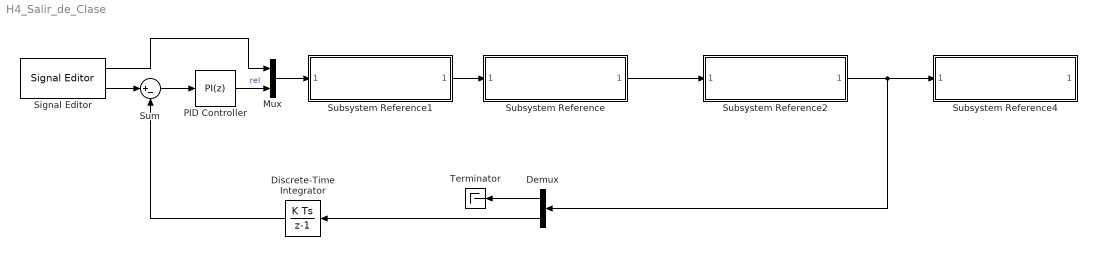
/*
 * Academic License - for use in teaching, academic research, and meeting
 * course requirements at degree granting institutions only.  Not for
 * government, commercial, or other organizational use.
 *
 * File: H4_Salir_de_Clase.c
 *
 * Code generated for Simulink model 'H4_Salir_de_Clase'.
 *
 * Model version                  : 1.26
 * Simulink Coder version         : 23.2 (R2023b) 01-Aug-2023
 * C/C++ source code generated on : Wed Dec 20 12:04:38 2023
 *
 * Target selection: ert.tlc
 * Embedded hardware selection: Atmel->AVR
 * Code generation objectives: Unspecified
 * Validation result: Not run
 */

#include "H4_Salir_de_Clase.h"
#include <math.h>
#include "rt_nonfinite.h"
#include "rtwtypes.h"
#include "H4_Salir_de_Clase_private.h"

/* Block signals (default storage) */
B_H4_Salir_de_Clase_T H4_Salir_de_Clase_B;

/* Block states (default storage) */
DW_H4_Salir_de_Clase_T H4_Salir_de_Clase_DW;

/* Real-time model */
static RT_MODEL_H4_Salir_de_Clase_T H4_Salir_de_Clase_M_;
RT_MODEL_H4_Salir_de_Clase_T *const H4_Salir_de_Clase_M = &H4_Salir_de_Clase_M_;

/* Model step function */
void H4_Salir_de_Clase_step(void)
{
  /* local block i/o variables */
  real_T rtb_V;
  real_T rtb_IntegralGain;
  real_T rtb_IntegralGain_a;
  real_T rtb_IntegralGain_j;
  real_T error_idx_1;
  real_T u0;
  int32_T rtb_Encoder1_0;
  int32_T rtb_Encoder_0;
  int16_T rtb_DataTypeConversion_idx_0;
  int16_T rtb_DataTypeConversion_idx_1;
  int16_T y;

  /* FromWorkspace: '<S2>/From Workspace' */
  {
    real_T t = H4_Salir_de_Clase_M->Timing.t[0];
    real_T *pTimeValues = (real_T *)
      H4_Salir_de_Clase_DW.FromWorkspace_PWORK.TimePtr;
    real_T *pDataValues = (real_T *)
      H4_Salir_de_Clase_DW.FromWorkspace_PWORK.DataPtr;
    if (t < pTimeValues[0]) {
      rtb_V = 0.0;
    } else if (t == pTimeValues[7]) {
      rtb_V = pDataValues[7];
    } else if (t > pTimeValues[7]) {
      rtb_V = 0.0;
    } else {
      int_T currTimeIndex = H4_Salir_de_Clase_DW.FromWorkspace_IWORK.PrevIndex;
      if (t < pTimeValues[currTimeIndex]) {
        while (t < pTimeValues[currTimeIndex]) {
          currTimeIndex--;
        }
      } else {
        while (t >= pTimeValues[currTimeIndex + 1]) {
          currTimeIndex++;
        }
      }

      rtb_V = pDataValues[currTimeIndex];
      H4_Salir_de_Clase_DW.FromWorkspace_IWORK.PrevIndex = currTimeIndex;
    }
  }

  /* Sum: '<Root>/Sum' incorporates:
   *  DiscreteIntegrator: '<Root>/Discrete-Time Integrator'
   */
  H4_Salir_de_Clase_B.Sum = rtb_V -
    H4_Salir_de_Clase_DW.DiscreteTimeIntegrator_DSTATE;

  /* FromWorkspace: '<S2>/fromWS_Signal 1' */
  {
    real_T t = H4_Salir_de_Clase_M->Timing.t[0];
    real_T *pTimeValues = (real_T *)
      H4_Salir_de_Clase_DW.fromWS_Signal1_PWORK.TimePtr;
    real_T *pDataValues = (real_T *)
      H4_Salir_de_Clase_DW.fromWS_Signal1_PWORK.DataPtr;
    if (t < pTimeValues[0]) {
      rtb_V = 0.0;
    } else if (t == pTimeValues[3]) {
      rtb_V = pDataValues[3];
    } else if (t > pTimeValues[3]) {
      rtb_V = 0.0;
    } else {
      int_T currTimeIndex = H4_Salir_de_Clase_DW.fromWS_Signal1_IWORK.PrevIndex;
      if (t < pTimeValues[currTimeIndex]) {
        while (t < pTimeValues[currTimeIndex]) {
          currTimeIndex--;
        }
      } else {
        while (t >= pTimeValues[currTimeIndex + 1]) {
          currTimeIndex++;
        }
      }

      rtb_V = pDataValues[currTimeIndex];
      H4_Salir_de_Clase_DW.fromWS_Signal1_IWORK.PrevIndex = currTimeIndex;
    }
  }

  /* SignalConversion generated from: '<S4>/Matrix Multiply' incorporates:
   *  DiscreteIntegrator: '<S38>/Integrator'
   *  Gain: '<S43>/Proportional Gain'
   *  Sum: '<S47>/Sum'
   */
  error_idx_1 = H4_Salir_de_Clase_P.PIDController_P * H4_Salir_de_Clase_B.Sum +
    H4_Salir_de_Clase_DW.Integrator_DSTATE;

  /* Sum: '<S3>/Sum' incorporates:
   *  Constant: '<S4>/Constant'
   *  Memory: '<S3>/Memory'
   *  Product: '<S4>/Matrix Multiply'
   *  SignalConversion generated from: '<S4>/Matrix Multiply'
   */
  H4_Salir_de_Clase_B.error_idx_0 = (H4_Salir_de_Clase_P.Constant_Value[0] *
    rtb_V + H4_Salir_de_Clase_P.Constant_Value[2] * error_idx_1) -
    H4_Salir_de_Clase_DW.Memory_PreviousInput[0];
  error_idx_1 = (H4_Salir_de_Clase_P.Constant_Value[1] * rtb_V +
                 H4_Salir_de_Clase_P.Constant_Value[3] * error_idx_1) -
    H4_Salir_de_Clase_DW.Memory_PreviousInput[1];

  /* Sum: '<S147>/Sum' incorporates:
   *  DiscreteIntegrator: '<S138>/Integrator'
   *  Gain: '<S143>/Proportional Gain'
   */
  u0 = H4_Salir_de_Clase_P.PIDController2_P * H4_Salir_de_Clase_B.error_idx_0 +
    H4_Salir_de_Clase_DW.Integrator_DSTATE_he;

  /* Saturate: '<S145>/Saturation' */
  if (u0 > H4_Salir_de_Clase_P.PIDController2_UpperSaturationL) {
    u0 = H4_Salir_de_Clase_P.PIDController2_UpperSaturationL;
  } else if (u0 < H4_Salir_de_Clase_P.PIDController2_LowerSaturationL) {
    u0 = H4_Salir_de_Clase_P.PIDController2_LowerSaturationL;
  }

  /* DataTypeConversion: '<S56>/Data Type Conversion' incorporates:
   *  Saturate: '<S145>/Saturation'
   */
  u0 = floor(u0);
  if (rtIsNaN(u0) || rtIsInf(u0)) {
    u0 = 0.0;
  } else {
    u0 = fmod(u0, 65536.0);
  }

  rtb_DataTypeConversion_idx_0 = u0 < 0.0 ? -(int16_T)(uint16_T)-u0 : (int16_T)
    (uint16_T)u0;

  /* Sum: '<S99>/Sum' incorporates:
   *  DiscreteIntegrator: '<S90>/Integrator'
   *  Gain: '<S95>/Proportional Gain'
   */
  u0 = H4_Salir_de_Clase_P.PIDController1_P * error_idx_1 +
    H4_Salir_de_Clase_DW.Integrator_DSTATE_h;

  /* Saturate: '<S97>/Saturation' */
  if (u0 > H4_Salir_de_Clase_P.PIDController1_UpperSaturationL) {
    u0 = H4_Salir_de_Clase_P.PIDController1_UpperSaturationL;
  } else if (u0 < H4_Salir_de_Clase_P.PIDController1_LowerSaturationL) {
    u0 = H4_Salir_de_Clase_P.PIDController1_LowerSaturationL;
  }

  /* DataTypeConversion: '<S56>/Data Type Conversion' incorporates:
   *  Saturate: '<S97>/Saturation'
   */
  u0 = floor(u0);
  if (rtIsNaN(u0) || rtIsInf(u0)) {
    u0 = 0.0;
  } else {
    u0 = fmod(u0, 65536.0);
  }

  rtb_DataTypeConversion_idx_1 = u0 < 0.0 ? -(int16_T)(uint16_T)-u0 : (int16_T)
    (uint16_T)u0;

  /* MATLABSystem: '<S157>/Adelante_der' */
  H4_Salir_de_Clase_DW.obj_b.PWMDriverObj.MW_PWM_HANDLE = MW_PWM_GetHandle(12UL);

  /* Saturate: '<S157>/Saturation2' */
  if (rtb_DataTypeConversion_idx_1 > H4_Salir_de_Clase_P.Saturation2_UpperSat) {
    y = H4_Salir_de_Clase_P.Saturation2_UpperSat;
  } else if (rtb_DataTypeConversion_idx_1 <
             H4_Salir_de_Clase_P.Saturation2_LowerSat) {
    y = H4_Salir_de_Clase_P.Saturation2_LowerSat;
  } else {
    y = rtb_DataTypeConversion_idx_1;
  }

  /* End of Saturate: '<S157>/Saturation2' */

  /* Start for MATLABSystem: '<S157>/Adelante_der' */
  if (y > 255) {
    y = 255;
  }

  if (y < 0) {
    y = 0;
  }

  /* MATLABSystem: '<S157>/Adelante_der' */
  MW_PWM_SetDutyCycle(H4_Salir_de_Clase_DW.obj_b.PWMDriverObj.MW_PWM_HANDLE,
                      (real_T)y);

  /* MATLABSystem: '<S157>/Adelante_izq' */
  H4_Salir_de_Clase_DW.obj_j.PWMDriverObj.MW_PWM_HANDLE = MW_PWM_GetHandle(9UL);

  /* Saturate: '<S157>/Saturation4' */
  if (rtb_DataTypeConversion_idx_0 > H4_Salir_de_Clase_P.Saturation4_UpperSat) {
    y = H4_Salir_de_Clase_P.Saturation4_UpperSat;
  } else if (rtb_DataTypeConversion_idx_0 <
             H4_Salir_de_Clase_P.Saturation4_LowerSat) {
    y = H4_Salir_de_Clase_P.Saturation4_LowerSat;
  } else {
    y = rtb_DataTypeConversion_idx_0;
  }

  /* End of Saturate: '<S157>/Saturation4' */

  /* Abs: '<S157>/Abs2' */
  if (y < 0) {
    y = -y;
  }

  /* End of Abs: '<S157>/Abs2' */

  /* Start for MATLABSystem: '<S157>/Adelante_izq' */
  if (y > 255) {
    y = 255;
  }

  if (y < 0) {
    y = 0;
  }

  /* MATLABSystem: '<S157>/Adelante_izq' */
  MW_PWM_SetDutyCycle(H4_Salir_de_Clase_DW.obj_j.PWMDriverObj.MW_PWM_HANDLE,
                      (real_T)y);

  /* MATLABSystem: '<S157>/Atras_der' */
  H4_Salir_de_Clase_DW.obj_e.PWMDriverObj.MW_PWM_HANDLE = MW_PWM_GetHandle(11UL);

  /* Saturate: '<S157>/Saturation3' */
  if (rtb_DataTypeConversion_idx_1 > H4_Salir_de_Clase_P.Saturation3_UpperSat) {
    y = H4_Salir_de_Clase_P.Saturation3_UpperSat;
  } else if (rtb_DataTypeConversion_idx_1 <
             H4_Salir_de_Clase_P.Saturation3_LowerSat) {
    y = H4_Salir_de_Clase_P.Saturation3_LowerSat;
  } else {
    y = rtb_DataTypeConversion_idx_1;
  }

  /* End of Saturate: '<S157>/Saturation3' */

  /* Abs: '<S157>/Abs1' */
  if (y < 0) {
    y = -y;
  }

  /* End of Abs: '<S157>/Abs1' */

  /* Start for MATLABSystem: '<S157>/Atras_der' */
  if (y > 255) {
    y = 255;
  }

  if (y < 0) {
    y = 0;
  }

  /* MATLABSystem: '<S157>/Atras_der' */
  MW_PWM_SetDutyCycle(H4_Salir_de_Clase_DW.obj_e.PWMDriverObj.MW_PWM_HANDLE,
                      (real_T)y);

  /* MATLABSystem: '<S157>/Atras_izq' */
  H4_Salir_de_Clase_DW.obj_g.PWMDriverObj.MW_PWM_HANDLE = MW_PWM_GetHandle(10UL);

  /* Saturate: '<S157>/Saturation5' */
  if (rtb_DataTypeConversion_idx_0 > H4_Salir_de_Clase_P.Saturation5_UpperSat) {
    y = H4_Salir_de_Clase_P.Saturation5_UpperSat;
  } else if (rtb_DataTypeConversion_idx_0 <
             H4_Salir_de_Clase_P.Saturation5_LowerSat) {
    y = H4_Salir_de_Clase_P.Saturation5_LowerSat;
  } else {
    y = rtb_DataTypeConversion_idx_0;
  }

  /* End of Saturate: '<S157>/Saturation5' */

  /* Start for MATLABSystem: '<S157>/Atras_izq' */
  if (y > 255) {
    y = 255;
  }

  if (y < 0) {
    y = 0;
  }

  /* MATLABSystem: '<S157>/Atras_izq' */
  MW_PWM_SetDutyCycle(H4_Salir_de_Clase_DW.obj_g.PWMDriverObj.MW_PWM_HANDLE,
                      (real_T)y);

  /* MATLABSystem: '<S157>/Digital Output' incorporates:
   *  Constant: '<S159>/Constant'
   *  RelationalOperator: '<S159>/Compare'
   */
  writeDigitalPin(8, (uint8_T)(rtb_DataTypeConversion_idx_0 !=
    H4_Salir_de_Clase_P.Constant_Value_c));

  /* MATLABSystem: '<S157>/Digital Output1' incorporates:
   *  Constant: '<S160>/Constant'
   *  RelationalOperator: '<S160>/Compare'
   */
  writeDigitalPin(13, (uint8_T)(rtb_DataTypeConversion_idx_1 !=
    H4_Salir_de_Clase_P.Constant_Value_d));

  /* Gain: '<S87>/Integral Gain' */
  rtb_IntegralGain = H4_Salir_de_Clase_P.PIDController1_I * error_idx_1;

  /* Gain: '<S135>/Integral Gain' */
  rtb_IntegralGain_a = H4_Salir_de_Clase_P.PIDController2_I *
    H4_Salir_de_Clase_B.error_idx_0;

  /* Gain: '<S35>/Integral Gain' */
  rtb_IntegralGain_j = H4_Salir_de_Clase_P.PIDController_I *
    H4_Salir_de_Clase_B.Sum;

  /* MATLABSystem: '<S156>/Encoder' */
  if (H4_Salir_de_Clase_DW.obj_p.SampleTime !=
      H4_Salir_de_Clase_P.Encoder_SampleTime) {
    H4_Salir_de_Clase_DW.obj_p.SampleTime =
      H4_Salir_de_Clase_P.Encoder_SampleTime;
  }

  if (H4_Salir_de_Clase_DW.obj_p.TunablePropsChanged) {
    H4_Salir_de_Clase_DW.obj_p.TunablePropsChanged = false;
  }

  MW_EncoderRead(H4_Salir_de_Clase_DW.obj_p.Index, &rtb_Encoder_0);

  /* MATLABSystem: '<S156>/Encoder1' */
  if (H4_Salir_de_Clase_DW.obj.SampleTime !=
      H4_Salir_de_Clase_P.Encoder1_SampleTime) {
    H4_Salir_de_Clase_DW.obj.SampleTime =
      H4_Salir_de_Clase_P.Encoder1_SampleTime;
  }

  if (H4_Salir_de_Clase_DW.obj.TunablePropsChanged) {
    H4_Salir_de_Clase_DW.obj.TunablePropsChanged = false;
  }

  MW_EncoderRead(H4_Salir_de_Clase_DW.obj.Index, &rtb_Encoder1_0);

  /* Gain: '<S156>/Gain' */
  H4_Salir_de_Clase_B.Sum = (real_T)H4_Salir_de_Clase_P.Gain_Gain *
    1.1368683772161603E-13;

  /* SampleTimeMath: '<S158>/TSamp' incorporates:
   *  Gain: '<S156>/Gain'
   *  MATLABSystem: '<S156>/Encoder'
   *  MATLABSystem: '<S156>/Encoder1'
   *
   * About '<S158>/TSamp':
   *  y = u * K where K = 1 / ( w * Ts )
   */
  H4_Salir_de_Clase_B.TSamp[0] = H4_Salir_de_Clase_B.Sum * (real_T)rtb_Encoder_0
    * H4_Salir_de_Clase_P.TSamp_WtEt;
  H4_Salir_de_Clase_B.TSamp[1] = H4_Salir_de_Clase_B.Sum * (real_T)
    rtb_Encoder1_0 * H4_Salir_de_Clase_P.TSamp_WtEt;

  /* Gain: '<S155>/Gain1' incorporates:
   *  Sum: '<S158>/Diff'
   *  UnitDelay: '<S158>/UD'
   *
   * Block description for '<S158>/Diff':
   *
   *  Add in CPU
   *
   * Block description for '<S158>/UD':
   *
   *  Store in Global RAM
   */
  H4_Salir_de_Clase_B.Gain1[0] = (H4_Salir_de_Clase_B.TSamp[0] -
    H4_Salir_de_Clase_DW.UD_DSTATE[0]) * H4_Salir_de_Clase_P.Gain1_Gain[0];
  H4_Salir_de_Clase_B.Gain1[1] = (H4_Salir_de_Clase_B.TSamp[1] -
    H4_Salir_de_Clase_DW.UD_DSTATE[1]) * H4_Salir_de_Clase_P.Gain1_Gain[1];

  /* Product: '<S5>/Matrix Multiply' incorporates:
   *  Constant: '<S5>/Constant'
   */
  H4_Salir_de_Clase_B.MatrixMultiply[0] = H4_Salir_de_Clase_P.Constant_Value_b[0]
    * H4_Salir_de_Clase_B.Gain1[0] + H4_Salir_de_Clase_B.Gain1[1] *
    H4_Salir_de_Clase_P.Constant_Value_b[2];
  H4_Salir_de_Clase_B.MatrixMultiply[1] = H4_Salir_de_Clase_B.Gain1[0] *
    H4_Salir_de_Clase_P.Constant_Value_b[1] + H4_Salir_de_Clase_B.Gain1[1] *
    H4_Salir_de_Clase_P.Constant_Value_b[3];

  /* Update for DiscreteIntegrator: '<S38>/Integrator' */
  H4_Salir_de_Clase_DW.Integrator_DSTATE +=
    H4_Salir_de_Clase_P.Integrator_gainval * rtb_IntegralGain_j;

  /* Update for DiscreteIntegrator: '<Root>/Discrete-Time Integrator' */
  H4_Salir_de_Clase_DW.DiscreteTimeIntegrator_DSTATE +=
    H4_Salir_de_Clase_P.DiscreteTimeIntegrator_gainval *
    H4_Salir_de_Clase_B.MatrixMultiply[1];

  /* Update for DiscreteIntegrator: '<S90>/Integrator' */
  H4_Salir_de_Clase_DW.Integrator_DSTATE_h +=
    H4_Salir_de_Clase_P.Integrator_gainval_d * rtb_IntegralGain;

  /* Update for DiscreteIntegrator: '<S138>/Integrator' */
  H4_Salir_de_Clase_DW.Integrator_DSTATE_he +=
    H4_Salir_de_Clase_P.Integrator_gainval_i * rtb_IntegralGain_a;

  /* Update for Memory: '<S3>/Memory' */
  H4_Salir_de_Clase_DW.Memory_PreviousInput[0] = H4_Salir_de_Clase_B.Gain1[0];

  /* Update for UnitDelay: '<S158>/UD'
   *
   * Block description for '<S158>/UD':
   *
   *  Store in Global RAM
   */
  H4_Salir_de_Clase_DW.UD_DSTATE[0] = H4_Salir_de_Clase_B.TSamp[0];

  /* Update for Memory: '<S3>/Memory' */
  H4_Salir_de_Clase_DW.Memory_PreviousInput[1] = H4_Salir_de_Clase_B.Gain1[1];

  /* Update for UnitDelay: '<S158>/UD'
   *
   * Block description for '<S158>/UD':
   *
   *  Store in Global RAM
   */
  H4_Salir_de_Clase_DW.UD_DSTATE[1] = H4_Salir_de_Clase_B.TSamp[1];

  /* Update absolute time for base rate */
  /* The "clockTick0" counts the number of times the code of this task has
   * been executed. The absolute time is the multiplication of "clockTick0"
   * and "Timing.stepSize0". Size of "clockTick0" ensures timer will not
   * overflow during the application lifespan selected.
   */
  H4_Salir_de_Clase_M->Timing.t[0] =
    ((time_T)(++H4_Salir_de_Clase_M->Timing.clockTick0)) *
    H4_Salir_de_Clase_M->Timing.stepSize0;

  {
    /* Update absolute timer for sample time: [0.01s, 0.0s] */
    /* The "clockTick1" counts the number of times the code of this task has
     * been executed. The resolution of this integer timer is 0.01, which is the step size
     * of the task. Size of "clockTick1" ensures timer will not overflow during the
     * application lifespan selected.
     */
    H4_Salir_de_Clase_M->Timing.clockTick1++;
  }
}
